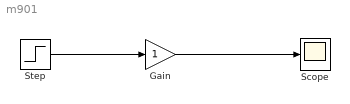
/*
 * m901.c
 * 
 * Real-Time Workshop code generation for Simulink model "m901.mdl".
 *
 * Model Version              : 1.4
 * Real-Time Workshop version : 6.1  (R14SP1)  05-Sep-2004
 * C source code generated on : Sat Apr 02 08:15:15 2005
 */

#include "m901.h"
#include "m901_private.h"

/* Block signals (auto storage) */
BlockIO_m901 m901_B;

/* Block states (auto storage) */
D_Work_m901 m901_DWork;

/* Real-time model */
rtModel_m901 m901_M_;
rtModel_m901 *m901_M = &m901_M_;

/* Model output function */
static void m901_output(int_T tid)
{

  /* local block i/o variables */

  real_T rtb_Step;

  /* Step: '<Root>/Step' */
  {
    real_T currentTime = m901_M->Timing.t[0];
    if (currentTime < m901_P.Step_Time) {
      rtb_Step = m901_P.Step_Y0;
    } else {
      rtb_Step = m901_P.Step_YFinal;
    }
  }

  /* Gain: '<Root>/Gain' */
  m901_B.Gain = rtb_Step * m901_P.Gain_Gain;

  /* Scope: '<Root>/Scope' */
  {
    real_T u[2];
    u[0] = m901_M->Timing.t[1];
    u[1] = m901_B.Gain;
    rt_UpdateLogVar(m901_DWork.Scope_PWORK.LoggedData, u);
  }
}

/* Model update function */
static void m901_update(int_T tid)
{

  /* Update absolute time for base rate */

  if(!(++m901_M->Timing.clockTick0)) ++m901_M->Timing.clockTickH0;
  m901_M->Timing.t[0] = m901_M->Timing.clockTick0 * m901_M->Timing.stepSize0 +
    m901_M->Timing.clockTickH0 * m901_M->Timing.stepSize0 * 4294967296.0;

  {
    /* Update absolute timer for sample time: [0.5s, 0.0s] */

    if(!(++m901_M->Timing.clockTick1)) ++m901_M->Timing.clockTickH1;
    m901_M->Timing.t[1] = m901_M->Timing.clockTick1 * m901_M->Timing.stepSize1 +
      m901_M->Timing.clockTickH1 * m901_M->Timing.stepSize1 * 4294967296.0;
  }
}
